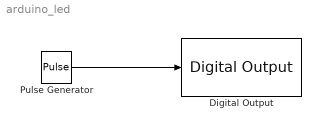
/*
 * Academic License - for use in teaching, academic research, and meeting
 * course requirements at degree granting institutions only.  Not for
 * government, commercial, or other organizational use.
 *
 * File: arduino_led.c
 *
 * Code generated for Simulink model 'arduino_led'.
 *
 * Model version                  : 1.1
 * Simulink Coder version         : 9.3 (R2020a) 18-Nov-2019
 * C/C++ source code generated on : Mon Jun  1 14:01:56 2020
 *
 * Target selection: ert.tlc
 * Embedded hardware selection: Atmel->AVR
 * Code generation objectives: Unspecified
 * Validation result: Not run
 */

#include "arduino_led.h"
#include "arduino_led_private.h"

/* Block states (default storage) */
DW_arduino_led_T arduino_led_DW;

/* Real-time model */
RT_MODEL_arduino_led_T arduino_led_M_;
RT_MODEL_arduino_led_T *const arduino_led_M = &arduino_led_M_;

/* Forward declaration for local functions */
static void matlabCodegenHandle_matlabCodeg(codertarget_arduinobase_block_T *obj);
real_T rt_roundd_snf(real_T u)
{
  real_T y;
  if (fabs(u) < 4.503599627370496E+15) {
    if (u >= 0.5) {
      y = floor(u + 0.5);
    } else if (u > -0.5) {
      y = u * 0.0;
    } else {
      y = ceil(u - 0.5);
    }
  } else {
    y = u;
  }

  return y;
}

static void matlabCodegenHandle_matlabCodeg(codertarget_arduinobase_block_T *obj)
{
  if (!obj->matlabCodegenIsDeleted) {
    obj->matlabCodegenIsDeleted = true;
  }
}

/* Model step function */
void arduino_led_step(void)
{
  real_T rtb_PulseGenerator;
  uint8_T tmp;

  /* DiscretePulseGenerator: '<Root>/Pulse Generator' */
  rtb_PulseGenerator = (arduino_led_DW.clockTickCounter <
                        arduino_led_P.PulseGenerator_Duty) &&
    (arduino_led_DW.clockTickCounter >= 0L) ? arduino_led_P.PulseGenerator_Amp :
    0.0;
  if (arduino_led_DW.clockTickCounter >= arduino_led_P.PulseGenerator_Period -
      1.0) {
    arduino_led_DW.clockTickCounter = 0L;
  } else {
    arduino_led_DW.clockTickCounter++;
  }

  /* End of DiscretePulseGenerator: '<Root>/Pulse Generator' */

  /* MATLABSystem: '<Root>/Digital Output' */
  rtb_PulseGenerator = rt_roundd_snf(rtb_PulseGenerator);
  if (rtb_PulseGenerator < 256.0) {
    if (rtb_PulseGenerator >= 0.0) {
      tmp = (uint8_T)rtb_PulseGenerator;
    } else {
      tmp = 0U;
    }
  } else {
    tmp = MAX_uint8_T;
  }

  writeDigitalPin(13, tmp);

  /* End of MATLABSystem: '<Root>/Digital Output' */
}
